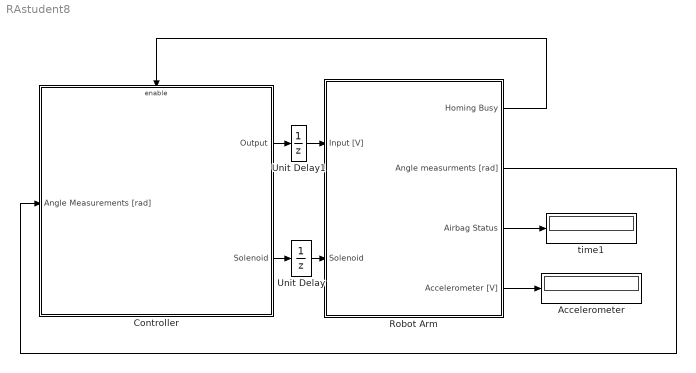
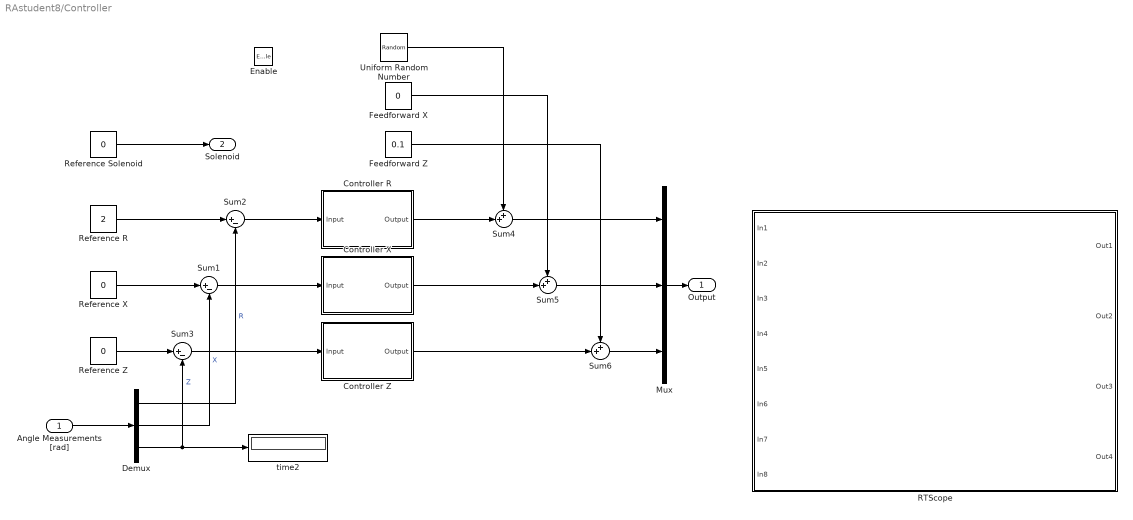
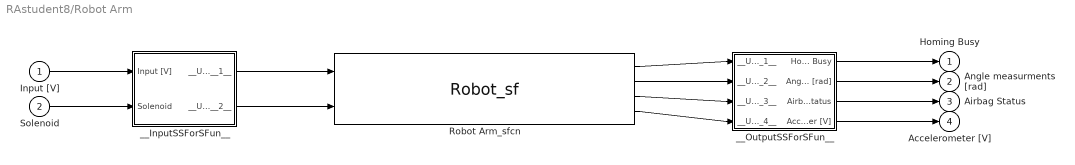
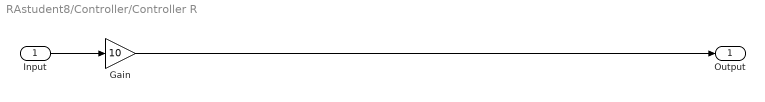
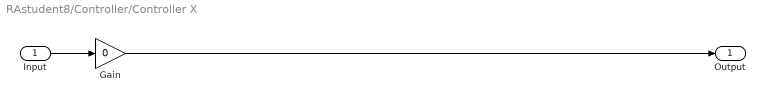
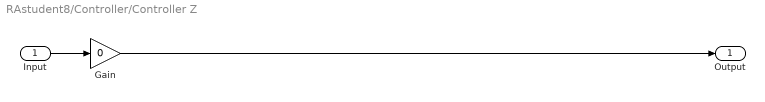
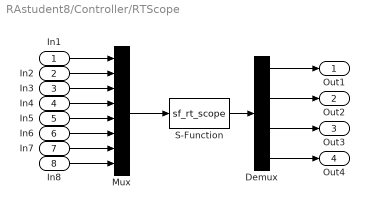
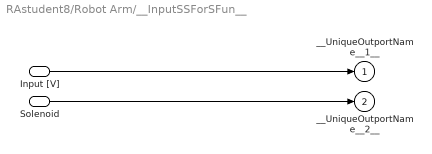
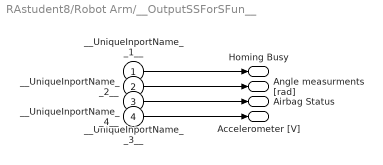
/*
 * RAstudent8.c
 *
 * Academic License - for use in teaching, academic research, and meeting
 * course requirements at degree granting institutions only.  Not for
 * government, commercial, or other organizational use.
 *
 * Code generation for model "RAstudent8".
 *
 * Model version              : 1.899
 * Simulink Coder version : 8.9 (R2015b) 13-Aug-2015
 * C source code generated on : Fri Apr  8 10:56:35 2016
 *
 * Target selection: ectarget.tlc
 * Note: GRT includes extra infrastructure and instrumentation for prototyping
 * Embedded hardware selection: 32-bit Generic
 * Code generation objectives: Unspecified
 * Validation result: Not run
 */

#include "RAstudent8.h"
#include "RAstudent8_private.h"
#include "RAstudent8_dt.h"
#undef S_FUNCTION_NAME
#if !defined(RTW_GENERATED_SFCN_TUNABLE_PRMS_Robot_sf)
#define RTW_GENERATED_SFCN_TUNABLE_PRMS_Robot_sf
#endif

#include "Robot_sf.h"

const real_T RAstudent8_RGND = 0.0;    /* real_T ground */

/* Block signals (auto storage) */
B_RAstudent8_T RAstudent8_B;

/* Block states (auto storage) */
DW_RAstudent8_T RAstudent8_DW;

/* Real-time model */
RT_MODEL_RAstudent8_T RAstudent8_M_;
RT_MODEL_RAstudent8_T *const RAstudent8_M = &RAstudent8_M_;
real_T rt_urand_Upu32_Yd_f_pw_snf(uint32_T *u)
{
  uint32_T lo;
  uint32_T hi;

  /* Uniform random number generator (random number between 0 and 1)

     #define IA      16807                      magic multiplier = 7^5
     #define IM      2147483647                 modulus = 2^31-1
     #define IQ      127773                     IM div IA
     #define IR      2836                       IM modulo IA
     #define S       4.656612875245797e-10      reciprocal of 2^31-1
     test = IA * (seed % IQ) - IR * (seed/IQ)
     seed = test < 0 ? (test + IM) : test
     return (seed*S)
   */
  lo = *u % 127773U * 16807U;
  hi = *u / 127773U * 2836U;
  if (lo < hi) {
    *u = 2147483647U - (hi - lo);
  } else {
    *u = lo - hi;
  }

  return (real_T)*u * 4.6566128752457969E-10;
}

/* Model output function */
void RAstudent8_output(void)
{
  /* Reset subsysRan breadcrumbs */
  srClearBC(RAstudent8_DW.Controller_SubsysRanBC);

  /* UnitDelay: '<Root>/Unit Delay1' */
  RAstudent8_B.UnitDelay1[0] = RAstudent8_DW.UnitDelay1_DSTATE[0];
  RAstudent8_B.UnitDelay1[1] = RAstudent8_DW.UnitDelay1_DSTATE[1];
  RAstudent8_B.UnitDelay1[2] = RAstudent8_DW.UnitDelay1_DSTATE[2];

  /* UnitDelay: '<Root>/Unit Delay' */
  RAstudent8_B.UnitDelay = RAstudent8_DW.UnitDelay_DSTATE;

  /* RTW Generated Level2 S-Function Block: '<S2>/Robot Arm_sfcn' (Robot_sf) */
  {
    SimStruct *rts = RAstudent8_M->childSfunctions[1];
    sfcnOutputs(rts, 0);
  }

  /* Outputs for Enabled SubSystem: '<Root>/Controller' incorporates:
   *  EnablePort: '<S1>/Enable'
   */
  if (RAstudent8_B.RobotArm_sfcn_o1 > 0.0) {
    if (!RAstudent8_DW.Controller_MODE) {
      RAstudent8_DW.Controller_MODE = true;
    }
  } else {
    if (RAstudent8_DW.Controller_MODE) {
      RAstudent8_DW.Controller_MODE = false;
    }
  }

  if (RAstudent8_DW.Controller_MODE) {
    /* UniformRandomNumber: '<S1>/Uniform Random Number' */
    RAstudent8_B.UniformRandomNumber =
      RAstudent8_DW.UniformRandomNumber_NextOutput;

    /* Sum: '<S1>/Sum4' incorporates:
     *  Constant: '<S1>/Reference R'
     *  Gain: '<S3>/Gain'
     *  Sum: '<S1>/Sum2'
     */
    RAstudent8_B.Sum4 = (RAstudent8_P.ReferenceR_Value -
                         RAstudent8_B.RobotArm_sfcn_o2[0]) *
      RAstudent8_P.Gain_Gain + RAstudent8_B.UniformRandomNumber;

    /* Sum: '<S1>/Sum5' incorporates:
     *  Constant: '<S1>/Feedforward X'
     *  Constant: '<S1>/Reference X'
     *  Gain: '<S4>/Gain'
     *  Sum: '<S1>/Sum1'
     */
    RAstudent8_B.Sum5 = (RAstudent8_P.ReferenceX_Value -
                         RAstudent8_B.RobotArm_sfcn_o2[1]) *
      RAstudent8_P.Gain_Gain_e + RAstudent8_P.FeedforwardX_Value;

    /* Sum: '<S1>/Sum6' incorporates:
     *  Constant: '<S1>/Feedforward Z'
     *  Constant: '<S1>/Reference Z'
     *  Gain: '<S5>/Gain'
     *  Sum: '<S1>/Sum3'
     */
    RAstudent8_B.Sum6 = (RAstudent8_P.ReferenceZ_Value -
                         RAstudent8_B.RobotArm_sfcn_o2[2]) *
      RAstudent8_P.Gain_Gain_l + RAstudent8_P.FeedforwardZ_Value;

    /* Constant: '<S1>/Reference Solenoid' */
    RAstudent8_B.ReferenceSolenoid = RAstudent8_P.ReferenceSolenoid_Value;

    /* Level2 S-Function Block: '<S6>/S-Function' (sf_rt_scope) */
    {
      SimStruct *rts = RAstudent8_M->childSfunctions[0];
      sfcnOutputs(rts, 0);
    }

    srUpdateBC(RAstudent8_DW.Controller_SubsysRanBC);
  }

  /* End of Outputs for SubSystem: '<Root>/Controller' */
}

/* Model update function */
void RAstudent8_update(void)
{
  /* Update for UnitDelay: '<Root>/Unit Delay1' */
  RAstudent8_DW.UnitDelay1_DSTATE[0] = RAstudent8_B.Sum4;
  RAstudent8_DW.UnitDelay1_DSTATE[1] = RAstudent8_B.Sum5;
  RAstudent8_DW.UnitDelay1_DSTATE[2] = RAstudent8_B.Sum6;

  /* Update for UnitDelay: '<Root>/Unit Delay' */
  RAstudent8_DW.UnitDelay_DSTATE = RAstudent8_B.ReferenceSolenoid;

  /* RTW Generated Level2 S-Function Block: '<S2>/Robot Arm_sfcn' (Robot_sf) */
  {
    SimStruct *rts = RAstudent8_M->childSfunctions[1];
    sfcnUpdate(rts, 0);
    if (ssGetErrorStatus(rts) != (NULL))
      return;
  }

  /* Update for Enabled SubSystem: '<Root>/Controller' incorporates:
   *  Update for EnablePort: '<S1>/Enable'
   */
  if (RAstudent8_DW.Controller_MODE) {
    /* Update for UniformRandomNumber: '<S1>/Uniform Random Number' */
    RAstudent8_DW.UniformRandomNumber_NextOutput =
      (RAstudent8_P.UniformRandomNumber_Maximum -
       RAstudent8_P.UniformRandomNumber_Minimum) * rt_urand_Upu32_Yd_f_pw_snf
      (&RAstudent8_DW.RandSeed) + RAstudent8_P.UniformRandomNumber_Minimum;
  }

  /* End of Update for SubSystem: '<Root>/Controller' */

  /* Update absolute time for base rate */
  /* The "clockTick0" counts the number of times the code of this task has
   * been executed. The absolute time is the multiplication of "clockTick0"
   * and "Timing.stepSize0". Size of "clockTick0" ensures timer will not
   * overflow during the application lifespan selected.
   * Timer of this task consists of two 32 bit unsigned integers.
   * The two integers represent the low bits Timing.clockTick0 and the high bits
   * Timing.clockTickH0. When the low bit overflows to 0, the high bits increment.
   */
  if (!(++RAstudent8_M->Timing.clockTick0)) {
    ++RAstudent8_M->Timing.clockTickH0;
  }

  RAstudent8_M->Timing.t[0] = RAstudent8_M->Timing.clockTick0 *
    RAstudent8_M->Timing.stepSize0 + RAstudent8_M->Timing.clockTickH0 *
    RAstudent8_M->Timing.stepSize0 * 4294967296.0;

  {
    /* Update absolute timer for sample time: [0.000244140625s, 0.0s] */
    /* The "clockTick1" counts the number of times the code of this task has
     * been executed. The absolute time is the multiplication of "clockTick1"
     * and "Timing.stepSize1". Size of "clockTick1" ensures timer will not
     * overflow during the application lifespan selected.
     * Timer of this task consists of two 32 bit unsigned integers.
     * The two integers represent the low bits Timing.clockTick1 and the high bits
     * Timing.clockTickH1. When the low bit overflows to 0, the high bits increment.
     */
    if (!(++RAstudent8_M->Timing.clockTick1)) {
      ++RAstudent8_M->Timing.clockTickH1;
    }

    RAstudent8_M->Timing.t[1] = RAstudent8_M->Timing.clockTick1 *
      RAstudent8_M->Timing.stepSize1 + RAstudent8_M->Timing.clockTickH1 *
      RAstudent8_M->Timing.stepSize1 * 4294967296.0;
  }
}
